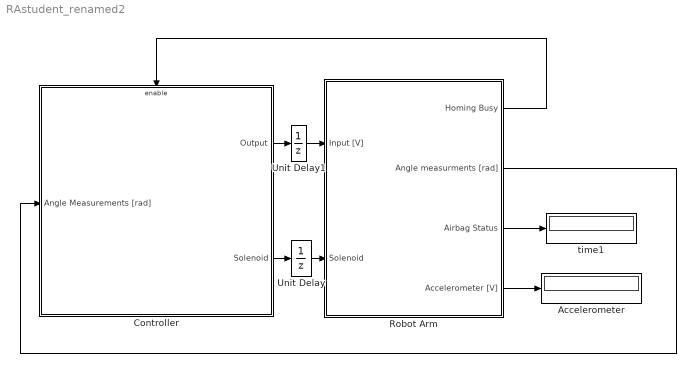
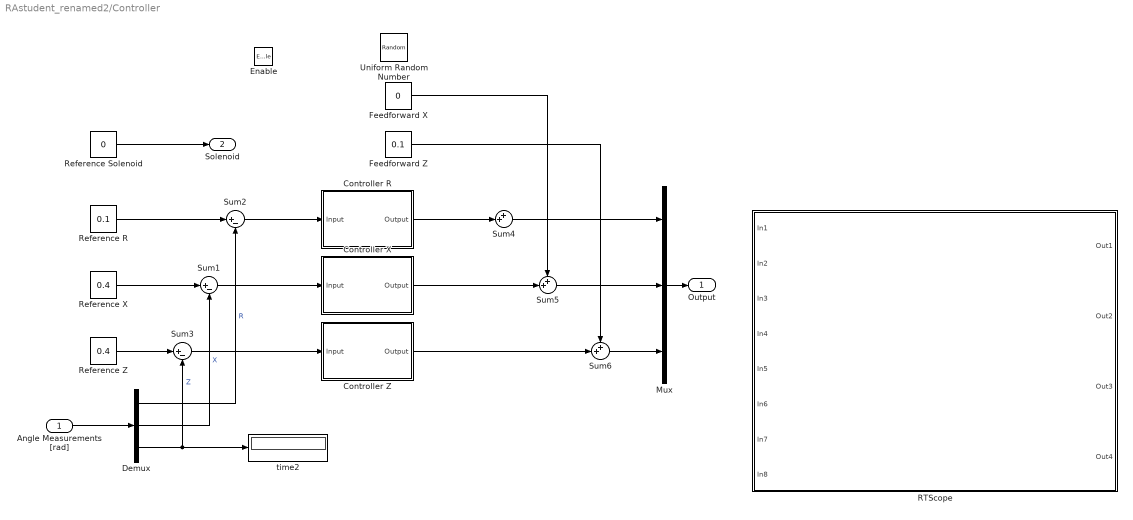
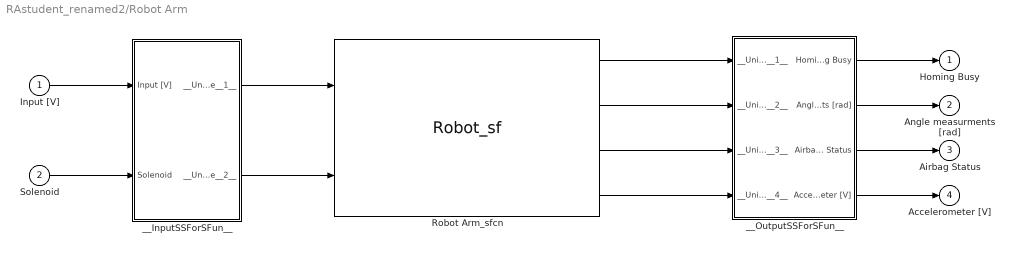
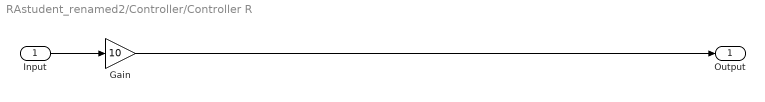
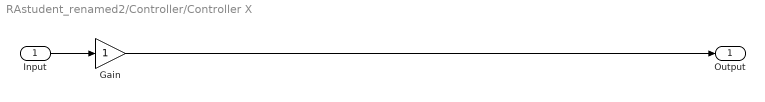
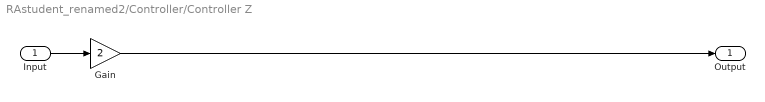
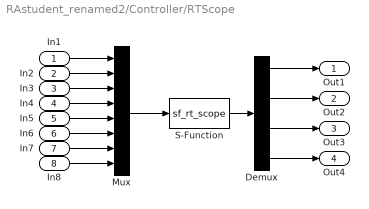
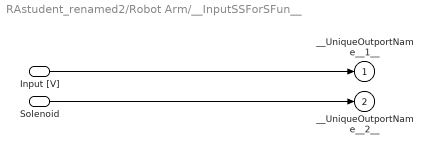
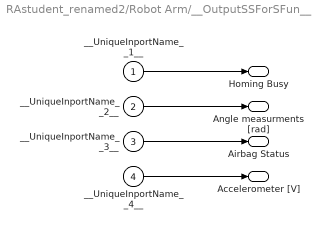
/*
 * RAstudent_renamed2.c
 *
 * Academic License - for use in teaching, academic research, and meeting
 * course requirements at degree granting institutions only.  Not for
 * government, commercial, or other organizational use.
 *
 * Code generation for model "RAstudent_renamed2".
 *
 * Model version              : 1.902
 * Simulink Coder version : 8.9 (R2015b) 13-Aug-2015
 * C source code generated on : Fri Apr  8 11:37:30 2016
 *
 * Target selection: ectarget.tlc
 * Note: GRT includes extra infrastructure and instrumentation for prototyping
 * Embedded hardware selection: 32-bit Generic
 * Code generation objectives: Unspecified
 * Validation result: Not run
 */

#include "RAstudent_renamed2.h"
#include "RAstudent_renamed2_private.h"
#include "RAstudent_renamed2_dt.h"
#undef S_FUNCTION_NAME
#if !defined(RTW_GENERATED_SFCN_TUNABLE_PRMS_Robot_sf)
#define RTW_GENERATED_SFCN_TUNABLE_PRMS_Robot_sf
#endif

#include "Robot_sf.h"

const real_T RAstudent_renamed2_RGND = 0.0;/* real_T ground */

/* Block signals (auto storage) */
B_RAstudent_renamed2_T RAstudent_renamed2_B;

/* Block states (auto storage) */
DW_RAstudent_renamed2_T RAstudent_renamed2_DW;

/* Real-time model */
RT_MODEL_RAstudent_renamed2_T RAstudent_renamed2_M_;
RT_MODEL_RAstudent_renamed2_T *const RAstudent_renamed2_M =
  &RAstudent_renamed2_M_;

/* Model output function */
void RAstudent_renamed2_output(void)
{
  /* Reset subsysRan breadcrumbs */
  srClearBC(RAstudent_renamed2_DW.Controller_SubsysRanBC);

  /* UnitDelay: '<Root>/Unit Delay1' */
  RAstudent_renamed2_B.UnitDelay1[0] = RAstudent_renamed2_DW.UnitDelay1_DSTATE[0];
  RAstudent_renamed2_B.UnitDelay1[1] = RAstudent_renamed2_DW.UnitDelay1_DSTATE[1];
  RAstudent_renamed2_B.UnitDelay1[2] = RAstudent_renamed2_DW.UnitDelay1_DSTATE[2];

  /* UnitDelay: '<Root>/Unit Delay' */
  RAstudent_renamed2_B.UnitDelay = RAstudent_renamed2_DW.UnitDelay_DSTATE;

  /* RTW Generated Level2 S-Function Block: '<S2>/Robot Arm_sfcn' (Robot_sf) */
  {
    SimStruct *rts = RAstudent_renamed2_M->childSfunctions[1];
    sfcnOutputs(rts, 0);
  }

  /* Outputs for Enabled SubSystem: '<Root>/Controller' incorporates:
   *  EnablePort: '<S1>/Enable'
   */
  if (RAstudent_renamed2_B.RobotArm_sfcn_o1 > 0.0) {
    if (!RAstudent_renamed2_DW.Controller_MODE) {
      RAstudent_renamed2_DW.Controller_MODE = true;
    }
  } else {
    if (RAstudent_renamed2_DW.Controller_MODE) {
      RAstudent_renamed2_DW.Controller_MODE = false;
    }
  }

  if (RAstudent_renamed2_DW.Controller_MODE) {
    /* Sum: '<S1>/Sum4' incorporates:
     *  Constant: '<S1>/Reference R'
     *  Gain: '<S3>/Gain'
     *  Sum: '<S1>/Sum2'
     */
    RAstudent_renamed2_B.Sum4 = (RAstudent_renamed2_P.ReferenceR_Value -
      RAstudent_renamed2_B.RobotArm_sfcn_o2[0]) * RAstudent_renamed2_P.Gain_Gain;

    /* Sum: '<S1>/Sum5' incorporates:
     *  Constant: '<S1>/Feedforward X'
     *  Constant: '<S1>/Reference X'
     *  Gain: '<S4>/Gain'
     *  Sum: '<S1>/Sum1'
     */
    RAstudent_renamed2_B.Sum5 = (RAstudent_renamed2_P.ReferenceX_Value -
      RAstudent_renamed2_B.RobotArm_sfcn_o2[1]) *
      RAstudent_renamed2_P.Gain_Gain_e + RAstudent_renamed2_P.FeedforwardX_Value;

    /* Sum: '<S1>/Sum6' incorporates:
     *  Constant: '<S1>/Feedforward Z'
     *  Constant: '<S1>/Reference Z'
     *  Gain: '<S5>/Gain'
     *  Sum: '<S1>/Sum3'
     */
    RAstudent_renamed2_B.Sum6 = (RAstudent_renamed2_P.ReferenceZ_Value -
      RAstudent_renamed2_B.RobotArm_sfcn_o2[2]) *
      RAstudent_renamed2_P.Gain_Gain_l + RAstudent_renamed2_P.FeedforwardZ_Value;

    /* Constant: '<S1>/Reference Solenoid' */
    RAstudent_renamed2_B.ReferenceSolenoid =
      RAstudent_renamed2_P.ReferenceSolenoid_Value;

    /* Level2 S-Function Block: '<S6>/S-Function' (sf_rt_scope) */
    {
      SimStruct *rts = RAstudent_renamed2_M->childSfunctions[0];
      sfcnOutputs(rts, 0);
    }

    srUpdateBC(RAstudent_renamed2_DW.Controller_SubsysRanBC);
  }

  /* End of Outputs for SubSystem: '<Root>/Controller' */
}

/* Model update function */
void RAstudent_renamed2_update(void)
{
  /* Update for UnitDelay: '<Root>/Unit Delay1' */
  RAstudent_renamed2_DW.UnitDelay1_DSTATE[0] = RAstudent_renamed2_B.Sum4;
  RAstudent_renamed2_DW.UnitDelay1_DSTATE[1] = RAstudent_renamed2_B.Sum5;
  RAstudent_renamed2_DW.UnitDelay1_DSTATE[2] = RAstudent_renamed2_B.Sum6;

  /* Update for UnitDelay: '<Root>/Unit Delay' */
  RAstudent_renamed2_DW.UnitDelay_DSTATE =
    RAstudent_renamed2_B.ReferenceSolenoid;

  /* RTW Generated Level2 S-Function Block: '<S2>/Robot Arm_sfcn' (Robot_sf) */
  {
    SimStruct *rts = RAstudent_renamed2_M->childSfunctions[1];
    sfcnUpdate(rts, 0);
    if (ssGetErrorStatus(rts) != (NULL))
      return;
  }

  /* Update absolute time for base rate */
  /* The "clockTick0" counts the number of times the code of this task has
   * been executed. The absolute time is the multiplication of "clockTick0"
   * and "Timing.stepSize0". Size of "clockTick0" ensures timer will not
   * overflow during the application lifespan selected.
   * Timer of this task consists of two 32 bit unsigned integers.
   * The two integers represent the low bits Timing.clockTick0 and the high bits
   * Timing.clockTickH0. When the low bit overflows to 0, the high bits increment.
   */
  if (!(++RAstudent_renamed2_M->Timing.clockTick0)) {
    ++RAstudent_renamed2_M->Timing.clockTickH0;
  }

  RAstudent_renamed2_M->Timing.t[0] = RAstudent_renamed2_M->Timing.clockTick0 *
    RAstudent_renamed2_M->Timing.stepSize0 +
    RAstudent_renamed2_M->Timing.clockTickH0 *
    RAstudent_renamed2_M->Timing.stepSize0 * 4294967296.0;

  {
    /* Update absolute timer for sample time: [0.000244140625s, 0.0s] */
    /* The "clockTick1" counts the number of times the code of this task has
     * been executed. The absolute time is the multiplication of "clockTick1"
     * and "Timing.stepSize1". Size of "clockTick1" ensures timer will not
     * overflow during the application lifespan selected.
     * Timer of this task consists of two 32 bit unsigned integers.
     * The two integers represent the low bits Timing.clockTick1 and the high bits
     * Timing.clockTickH1. When the low bit overflows to 0, the high bits increment.
     */
    if (!(++RAstudent_renamed2_M->Timing.clockTick1)) {
      ++RAstudent_renamed2_M->Timing.clockTickH1;
    }

    RAstudent_renamed2_M->Timing.t[1] = RAstudent_renamed2_M->Timing.clockTick1 *
      RAstudent_renamed2_M->Timing.stepSize1 +
      RAstudent_renamed2_M->Timing.clockTickH1 *
      RAstudent_renamed2_M->Timing.stepSize1 * 4294967296.0;
  }
}
